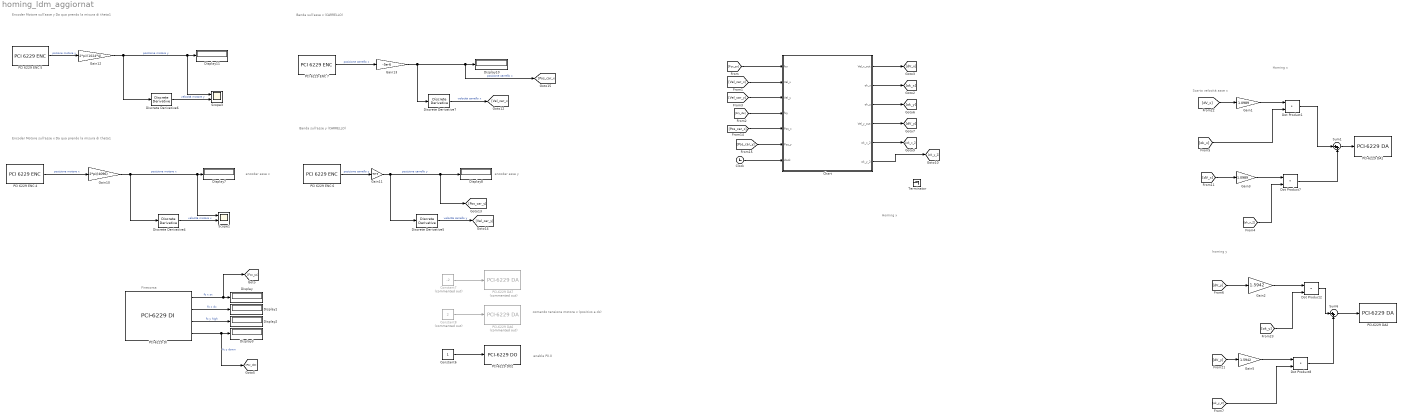
== stateflow chart homing_ldm_aggiornat/Chart ==
  state Homing1
    state Homing_x
      entry:
      v_sp_x=-2.1;
      v_sp_y=1.2;
      ok_x=1;
      ok_y=1;
      ok_x_2=0;
      during:
      Vel_x_out = v_sp_x-Vel_x;
      Vel_y_out=v_sp_y-Vel_y;
    note: Inizializzazione asse x Inizializzazione asse y
    state Fine_homing1
      entry:
      ok_y=0;
      ok_x=0;
      bx=Pos_x;
      by=Pos_y;
      v_sp_x=2.1;
      v_sp_y=-1.2;
      ok_x_2=1;
      ok_y_2=1;
      during:
      Vel_x_out=v_sp_x-Vel_x;
      dx=Pos_x-bx
      if (dx>0.5 )
      Vel_x_out=0;
      end
      Vel_y_out=v_sp_y-Vel_y;
      dy=abs(Pos_y-by);
      if (dy>0.5 )
      Vel_y_out=0;
      end
    note: Fine inizializzazione
    note: Porto al centro asse x Porto al centro asse y
    state Fine
      entry:
      ok_y_2=0;
      ok_x_2=0;
      inizio_traiettoria=0;
      during:
      inizio_traiettoria=1;
    (default) -> Homing_x
    Homing_x -> Homing1.Fine_homing1 : [fcx==0 && fcy==0]
    Homing1.Fine_homing1 -> Homing1.Fine : [dx>0.5 && dy>0.5]
  state Homing
    state Fine_homing1
      entry:
      ok_y=0;
      ok_x=0;
      a=Pos_x;
      ok_x_2=1;
      t1=clock;
      %X=0;
      %G_=0;
      %F_=0;
      %f_=0;
      during:
      t=clock-t1;
      %[G_,F_,f_]=Constant_Acceleration_ADIM_par(t,[1/3,1/3,1/3]);
      X_=Evaluate_Trajectory(t);
      Vel_x_out=X_;
      dx=Pos_x-a
    state Posizionamento_y
      entry:
      ok_x_2=0;
      ay=Pos_y;
      v_sp_y=-1.3;
      ok_y_2=1;
      during:
      Vel_y_out=v_sp_y-Vel_y;
      dy=abs(Pos_y-ay);
    state Fine
      entry:
      ok_y_2=0;
      ok_x_2=0;
    (default) -> Homing.Fine_homing1 : [fcy==0]
    Homing.Fine_homing1 -> Posizionamento_y : [dx>0.5]
    Posizionamento_y -> Homing.Fine : [dy>0.5]
  (default) -> Homing1
  Homing1.Fine -> Homing : [inizio_traiettoria==1]
  data: t1 local double; t local double; t function_input; X function_output; fcx input; Vel_x_out output; Vel_x input; ok_x output; ok_y output; Vel_y input; Vel_y_out output; fcy input; Pos_x input; dx local; ok_x_2 output; v_sp_x local; a local; v_sp_y local; ay local; Pos_y input; ok_y_2 output; dy local; clock input; bx local; by local; inizio_traiettoria local
  function X=Evaluate_Trajectory(t):
    | function X=Evaluate_Trajectory(t)
    | % parametri:
    | % t: tempo assolu
    | % h: spostamento richiesto
    | y=0;
    | yp=0;
    | ypp=0;
    | X=0;
    | 
    | h=0.5;
    | h0=0;
    | DT=[1/5 1/3 1/3 0]; %ta di ogni singolo ramo perche' composta
    | 
    | par = [1/3, 2/3];
    | 
    | 
    | DT1 = DT(1);
    | DT2 = DT(2);
    | DT3 = DT(3);
    | DT4 = DT(4);
    | 
    | T0 = 0;
    | T1 = T0 + DT1;
    | T2 = T1 + DT2;
    | T3 = T2 + DT3;
    | T4  = T3 + DT4;                  % Total time
    | 
    | if t >= T0 && t <= T1            % Interval N°1 
    |    td = DT1; %tempo di azionamento
    |    x = (t - T0)/td; %tempo adimensionale
    |    
    |    [G,F,f] = Constant_Acceleration_ADIM_par(x,par);
    |    y = h0 + G*h;
    |    yp = F * h/td;
    |    ypp = f * h/td^2;
    | end
    | 
    | if t > T1 && t <= T2             % Interval N°2 
    |    y = h0 + h;
    |    yp = 0;
    |    ypp = 0;
    | end
    | 
    | if t > T2 && t <= T3             % Interval N°3
    |    td = DT3;
    |    x = (t - T2)/td;
    |    
    |    [G,F,f] = Constant_Acceleration_ADIM_par(x,par);
    | 
    |    y = (h0 + h) - G*h;
    |    yp =  - (F * h/td);
    |    ypp = - (f * h/td^2);
    | end
    | 
    | if t > T3               % Interval N°4    
    |    y = h0;
    |    yp = 0;
    |    ypp = 0;  
    | end
    | Y = [y,yp,ypp];
    | X=yp;%pos, vel, acc

/*
 * homing_ldm_aggiornat.c
 *
 * Academic License - for use in teaching, academic research, and meeting
 * course requirements at degree granting institutions only.  Not for
 * government, commercial, or other organizational use.
 *
 * Code generation for model "homing_ldm_aggiornat".
 *
 * Model version              : 1.44
 * Simulink Coder version : 8.12 (R2017a) 16-Feb-2017
 * C source code generated on : Wed Nov 24 17:41:39 2021
 *
 * Target selection: slrt.tlc
 * Note: GRT includes extra infrastructure and instrumentation for prototyping
 * Embedded hardware selection: Generic->32-bit x86 compatible
 * Code generation objectives: Unspecified
 * Validation result: Not run
 */

#include "rt_logging_mmi.h"
#include "homing_ldm_aggiornat_capi.h"
#include "homing_ldm_aggiornat.h"
#include "homing_ldm_aggiornat_private.h"

/* Named constants for Chart: '<Root>/Chart' */
#define homing_ldm_a_IN_NO_ACTIVE_CHILD ((uint8_T)0U)
#define homing_ldm_aggi_IN_Fine_homing1 ((uint8_T)2U)
#define homing_ldm_aggiorna_IN_Homing_x ((uint8_T)3U)
#define homing_ldm_aggiornat_CALL_EVENT (-1)
#define homing_ldm_aggiornat_IN_Fine   ((uint8_T)1U)
#define homing_ldm_aggiornat_IN_Homing1 ((uint8_T)1U)
#define homing_ldm_aggiornat_IN_Homing2 ((uint8_T)2U)

/* Block signals (auto storage) */
B_homing_ldm_aggiornat_T homing_ldm_aggiornat_B;

/* Block states (auto storage) */
DW_homing_ldm_aggiornat_T homing_ldm_aggiornat_DW;

/* Real-time model */
RT_MODEL_homing_ldm_aggiornat_T homing_ldm_aggiornat_M_;
RT_MODEL_homing_ldm_aggiornat_T *const homing_ldm_aggiornat_M =
  &homing_ldm_aggiornat_M_;

/* Model output function */
static void homing_ldm_aggiornat_output(void)
{
  boolean_T sf_internal_predicateOutput;
  real_T tmp;
  real_T tmp_0;

  /* S-Function (dinipcim): '<Root>/PCI-6229 DI' */

  /* Level2 S-Function Block: '<Root>/PCI-6229 DI' (dinipcim) */
  {
    SimStruct *rts = homing_ldm_aggiornat_M->childSfunctions[0];
    sfcnOutputs(rts,1);
  }

  /* S-Function (encnipcim): '<Root>/PCI 6229 ENC 7' */

  /* Level2 S-Function Block: '<Root>/PCI 6229 ENC 7' (encnipcim) */
  {
    SimStruct *rts = homing_ldm_aggiornat_M->childSfunctions[1];
    sfcnOutputs(rts,1);
  }

  /* Gain: '<Root>/Gain13' */
  homing_ldm_aggiornat_B.posizionecarrellox_n =
    homing_ldm_aggiornat_P.Gain13_Gain *
    homing_ldm_aggiornat_B.posizionecarrellox;

  /* S-Function (encnipcim): '<Root>/PCI 6229 ENC 6' */

  /* Level2 S-Function Block: '<Root>/PCI 6229 ENC 6' (encnipcim) */
  {
    SimStruct *rts = homing_ldm_aggiornat_M->childSfunctions[2];
    sfcnOutputs(rts,1);
  }

  /* Gain: '<Root>/Gain11' */
  homing_ldm_aggiornat_B.posizionecarrelloy_e =
    homing_ldm_aggiornat_P.Gain11_Gain *
    homing_ldm_aggiornat_B.posizionecarrelloy;

  /* SampleTimeMath: '<S3>/TSamp'
   *
   * About '<S3>/TSamp':
   *  y = u * K where K = 1 / ( w * Ts )
   */
  homing_ldm_aggiornat_B.TSamp = homing_ldm_aggiornat_B.posizionecarrelloy_e *
    homing_ldm_aggiornat_P.TSamp_WtEt;

  /* UnitDelay: '<S3>/UD' */
  homing_ldm_aggiornat_B.Uk1 = homing_ldm_aggiornat_DW.UD_DSTATE;

  /* Sum: '<S3>/Diff' */
  homing_ldm_aggiornat_B.Diff = homing_ldm_aggiornat_B.TSamp -
    homing_ldm_aggiornat_B.Uk1;

  /* SampleTimeMath: '<S5>/TSamp'
   *
   * About '<S5>/TSamp':
   *  y = u * K where K = 1 / ( w * Ts )
   */
  homing_ldm_aggiornat_B.TSamp_b = homing_ldm_aggiornat_B.posizionecarrellox_n *
    homing_ldm_aggiornat_P.TSamp_WtEt_h;

  /* UnitDelay: '<S5>/UD' */
  homing_ldm_aggiornat_B.Uk1_a = homing_ldm_aggiornat_DW.UD_DSTATE_p;

  /* Sum: '<S5>/Diff' */
  homing_ldm_aggiornat_B.Diff_k = homing_ldm_aggiornat_B.TSamp_b -
    homing_ldm_aggiornat_B.Uk1_a;

  /* Clock: '<Root>/Clock' */
  homing_ldm_aggiornat_B.Clock = homing_ldm_aggiornat_M->Timing.t[0];

  /* Chart: '<Root>/Chart' */
  /* Gateway: Chart */
  homing_ldm_aggiornat_DW.sfEvent = homing_ldm_aggiornat_CALL_EVENT;

  /* During: Chart */
  if (homing_ldm_aggiornat_DW.is_active_c3_homing_ldm_aggiorn == 0U) {
    /* Entry: Chart */
    homing_ldm_aggiornat_DW.is_active_c3_homing_ldm_aggiorn = 1U;

    /* Entry Internal: Chart */
    /* Transition: '<S1>:148' */
    homing_ldm_aggiornat_DW.is_c3_homing_ldm_aggiornat =
      homing_ldm_aggiornat_IN_Homing1;

    /* Entry Internal 'Homing1': '<S1>:144' */
    /* Transition: '<S1>:146' */
    homing_ldm_aggiornat_DW.is_Homing1 = homing_ldm_aggiorna_IN_Homing_x;

    /* Entry 'Homing_x': '<S1>:150' */
    homing_ldm_aggiornat_DW.v_sp_x = -2.1;
    homing_ldm_aggiornat_DW.v_sp_y = 1.2;
    homing_ldm_aggiornat_B.ok_x = 1.0;
    homing_ldm_aggiornat_B.ok_y = 1.0;
    homing_ldm_aggiornat_B.ok_x_2 = 0.0;
  } else if (homing_ldm_aggiornat_DW.is_c3_homing_ldm_aggiornat ==
             homing_ldm_aggiornat_IN_Homing1) {
    /* During 'Homing1': '<S1>:144' */
    if (homing_ldm_aggiornat_DW.inizio_traiettoria == 1.0) {
      /* Transition: '<S1>:166' */
      /* Exit Internal 'Homing1': '<S1>:144' */
      homing_ldm_aggiornat_DW.is_Homing1 = homing_ldm_a_IN_NO_ACTIVE_CHILD;
      homing_ldm_aggiornat_DW.is_c3_homing_ldm_aggiornat =
        homing_ldm_aggiornat_IN_Homing2;

      /* Entry Internal 'Homing2': '<S1>:165' */
      /* Transition: '<S1>:167' */
      homing_ldm_aggiornat_DW.is_Homing2 = homing_ldm_aggiorna_IN_Homing_x;

      /* Entry 'Homing_x': '<S1>:170' */
      homing_ldm_aggiornat_DW.v_sp_x = -2.1;
      homing_ldm_aggiornat_DW.v_sp_y = 1.2;
      homing_ldm_aggiornat_B.ok_x = 1.0;
      homing_ldm_aggiornat_B.ok_y = 1.0;
      homing_ldm_aggiornat_B.ok_x_2 = 0.0;
    } else {
      switch (homing_ldm_aggiornat_DW.is_Homing1) {
       case homing_ldm_aggiornat_IN_Fine:
        homing_ldm_aggiornat_B.ok_y_2 = 0.0;
        homing_ldm_aggiornat_B.ok_x_2 = 0.0;

        /* During 'Fine': '<S1>:149' */
        homing_ldm_aggiornat_DW.inizio_traiettoria = 1.0;
        break;

       case homing_ldm_aggi_IN_Fine_homing1:
        homing_ldm_aggiornat_B.ok_y_2 = 1.0;
        homing_ldm_aggiornat_B.ok_x_2 = 1.0;
        homing_ldm_aggiornat_B.ok_x = 0.0;
        homing_ldm_aggiornat_B.ok_y = 0.0;

        /* During 'Fine_homing1': '<S1>:145' */
        sf_internal_predicateOutput = ((homing_ldm_aggiornat_DW.dx > 0.5) &&
          (homing_ldm_aggiornat_DW.dy > 0.5));
        if (sf_internal_predicateOutput) {
          /* Transition: '<S1>:147' */
          homing_ldm_aggiornat_DW.is_Homing1 = homing_ldm_aggiornat_IN_Fine;

          /* Entry 'Fine': '<S1>:149' */
          homing_ldm_aggiornat_B.ok_y_2 = 0.0;
          homing_ldm_aggiornat_B.ok_x_2 = 0.0;
          homing_ldm_aggiornat_DW.inizio_traiettoria = 0.0;
        } else {
          homing_ldm_aggiornat_B.Vel_x_out = homing_ldm_aggiornat_DW.v_sp_x -
            homing_ldm_aggiornat_B.Diff_k;
          homing_ldm_aggiornat_DW.dx =
            homing_ldm_aggiornat_B.posizionecarrellox_n -
            homing_ldm_aggiornat_DW.bx;
          if (homing_ldm_aggiornat_DW.dx > 0.5) {
            homing_ldm_aggiornat_B.Vel_x_out = 0.0;
          }

          homing_ldm_aggiornat_B.Vel_y_out = homing_ldm_aggiornat_DW.v_sp_y -
            homing_ldm_aggiornat_B.Diff;
          homing_ldm_aggiornat_DW.dy = fabs
            (homing_ldm_aggiornat_B.posizionecarrelloy_e -
             homing_ldm_aggiornat_DW.by);
          if (homing_ldm_aggiornat_DW.dy > 0.5) {
            homing_ldm_aggiornat_B.Vel_y_out = 0.0;
          }
        }
        break;

       default:
        homing_ldm_aggiornat_B.ok_x_2 = 0.0;
        homing_ldm_aggiornat_B.ok_x = 1.0;
        homing_ldm_aggiornat_B.ok_y = 1.0;

        /* During 'Homing_x': '<S1>:150' */
        sf_internal_predicateOutput = ((homing_ldm_aggiornat_B.fcxsx == 0.0) &&
          (homing_ldm_aggiornat_B.fcydown == 0.0));
        if (sf_internal_predicateOutput) {
          /* Transition: '<S1>:155' */
          homing_ldm_aggiornat_DW.is_Homing1 = homing_ldm_aggi_IN_Fine_homing1;

          /* Entry 'Fine_homing1': '<S1>:145' */
          homing_ldm_aggiornat_B.ok_y = 0.0;
          homing_ldm_aggiornat_B.ok_x = 0.0;
          homing_ldm_aggiornat_DW.bx =
            homing_ldm_aggiornat_B.posizionecarrellox_n;
          homing_ldm_aggiornat_DW.by =
            homing_ldm_aggiornat_B.posizionecarrelloy_e;
          homing_ldm_aggiornat_DW.v_sp_x = 2.1;
          homing_ldm_aggiornat_DW.v_sp_y = -1.2;
          homing_ldm_aggiornat_B.ok_x_2 = 1.0;
          homing_ldm_aggiornat_B.ok_y_2 = 1.0;
        } else {
          homing_ldm_aggiornat_B.Vel_x_out = homing_ldm_aggiornat_DW.v_sp_x -
            homing_ldm_aggiornat_B.Diff_k;
          homing_ldm_aggiornat_B.Vel_y_out = homing_ldm_aggiornat_DW.v_sp_y -
            homing_ldm_aggiornat_B.Diff;
        }
        break;
      }
    }
  } else {
    /* During 'Homing2': '<S1>:165' */
    switch (homing_ldm_aggiornat_DW.is_Homing2) {
     case homing_ldm_aggiornat_IN_Fine:
      homing_ldm_aggiornat_B.ok_y_2 = 0.0;
      homing_ldm_aggiornat_B.ok_x_2 = 0.0;

      /* During 'Fine': '<S1>:168' */
      break;

     case homing_ldm_aggi_IN_Fine_homing1:
      homing_ldm_aggiornat_B.ok_y_2 = 1.0;
      homing_ldm_aggiornat_B.ok_x_2 = 1.0;
      homing_ldm_aggiornat_B.ok_x = 0.0;
      homing_ldm_aggiornat_B.ok_y = 0.0;

      /* During 'Fine_homing1': '<S1>:172' */
      sf_internal_predicateOutput = ((homing_ldm_aggiornat_DW.dx > 0.5) &&
        (homing_ldm_aggiornat_DW.dy > 0.5));
      if (sf_internal_predicateOutput) {
        /* Transition: '<S1>:173' */
        homing_ldm_aggiornat_DW.is_Homing2 = homing_ldm_aggiornat_IN_Fine;

        /* Entry 'Fine': '<S1>:168' */
        homing_ldm_aggiornat_B.ok_y_2 = 0.0;
        homing_ldm_aggiornat_B.ok_x_2 = 0.0;
      } else {
        homing_ldm_aggiornat_B.Vel_x_out = homing_ldm_aggiornat_DW.v_sp_x -
          homing_ldm_aggiornat_B.Diff_k;
        homing_ldm_aggiornat_DW.dx = homing_ldm_aggiornat_B.posizionecarrellox_n
          - homing_ldm_aggiornat_DW.bx;
        if (homing_ldm_aggiornat_DW.dx > 0.5) {
          homing_ldm_aggiornat_B.Vel_x_out = 0.0;
        }

        homing_ldm_aggiornat_B.Vel_y_out = homing_ldm_aggiornat_DW.v_sp_y -
          homing_ldm_aggiornat_B.Diff;
        homing_ldm_aggiornat_DW.dy = fabs
          (homing_ldm_aggiornat_B.posizionecarrelloy_e -
           homing_ldm_aggiornat_DW.by);
        if (homing_ldm_aggiornat_DW.dy > 0.5) {
          homing_ldm_aggiornat_B.Vel_y_out = 0.0;
        }
      }
      break;

     default:
      homing_ldm_aggiornat_B.ok_x_2 = 0.0;
      homing_ldm_aggiornat_B.ok_x = 1.0;
      homing_ldm_aggiornat_B.ok_y = 1.0;

      /* During 'Homing_x': '<S1>:170' */
      sf_internal_predicateOutput = ((homing_ldm_aggiornat_B.fcxsx == 0.0) &&
        (homing_ldm_aggiornat_B.fcydown == 0.0));
      if (sf_internal_predicateOutput) {
        /* Transition: '<S1>:175' */
        homing_ldm_aggiornat_DW.is_Homing2 = homing_ldm_aggi_IN_Fine_homing1;

        /* Entry 'Fine_homing1': '<S1>:172' */
        homing_ldm_aggiornat_B.ok_y = 0.0;
        homing_ldm_aggiornat_B.ok_x = 0.0;
        homing_ldm_aggiornat_DW.bx = homing_ldm_aggiornat_B.posizionecarrellox_n;
        homing_ldm_aggiornat_DW.by = homing_ldm_aggiornat_B.posizionecarrelloy_e;
        homing_ldm_aggiornat_DW.v_sp_x = 2.1;
        homing_ldm_aggiornat_DW.v_sp_y = -1.2;
        homing_ldm_aggiornat_B.ok_x_2 = 1.0;
        homing_ldm_aggiornat_B.ok_y_2 = 1.0;
      } else {
        homing_ldm_aggiornat_B.Vel_x_out = homing_ldm_aggiornat_DW.v_sp_x -
          homing_ldm_aggiornat_B.Diff_k;
        homing_ldm_aggiornat_B.Vel_y_out = homing_ldm_aggiornat_DW.v_sp_y -
          homing_ldm_aggiornat_B.Diff;
      }
      break;
    }
  }

  /* End of Chart: '<Root>/Chart' */

  /* Gain: '<Root>/Gain1' */
  homing_ldm_aggiornat_B.Gain1 = homing_ldm_aggiornat_P.Gain1_Gain *
    homing_ldm_aggiornat_B.Vel_x_out;

  /* Gain: '<Root>/Gain2' */
  homing_ldm_aggiornat_B.Gain2 = homing_ldm_aggiornat_P.Gain2_Gain *
    homing_ldm_aggiornat_B.Vel_y_out;

  /* Gain: '<Root>/Gain3' */
  homing_ldm_aggiornat_B.Gain3 = homing_ldm_aggiornat_P.Gain3_Gain *
    homing_ldm_aggiornat_B.Vel_x_out;

  /* DotProduct: '<Root>/Dot Product1' */
  tmp = homing_ldm_aggiornat_B.Gain1;
  tmp_0 = homing_ldm_aggiornat_B.ok_x;
  homing_ldm_aggiornat_B.DotProduct1 = tmp * tmp_0;

  /* DotProduct: '<Root>/Dot Product7' */
  tmp = homing_ldm_aggiornat_B.Gain3;
  tmp_0 = homing_ldm_aggiornat_B.ok_x_2;
  homing_ldm_aggiornat_B.DotProduct7 = tmp * tmp_0;

  /* Sum: '<Root>/Sum1' */
  homing_ldm_aggiornat_B.Sum1 = homing_ldm_aggiornat_B.DotProduct1 +
    homing_ldm_aggiornat_B.DotProduct7;

  /* S-Function (danipcim): '<Root>/PCI-6229 DA1' */

  /* Level2 S-Function Block: '<Root>/PCI-6229 DA1' (danipcim) */
  {
    SimStruct *rts = homing_ldm_aggiornat_M->childSfunctions[3];
    sfcnOutputs(rts,1);
  }

  /* DotProduct: '<Root>/Dot Product2' */
  tmp = homing_ldm_aggiornat_B.Gain2;
  tmp_0 = homing_ldm_aggiornat_B.ok_y;
  homing_ldm_aggiornat_B.DotProduct2 = tmp * tmp_0;

  /* Gain: '<Root>/Gain5' */
  homing_ldm_aggiornat_B.Gain5 = homing_ldm_aggiornat_P.Gain5_Gain *
    homing_ldm_aggiornat_B.Vel_y_out;

  /* DotProduct: '<Root>/Dot Product8' */
  tmp = homing_ldm_aggiornat_B.Gain5;
  tmp_0 = homing_ldm_aggiornat_B.ok_y_2;
  homing_ldm_aggiornat_B.DotProduct8 = tmp * tmp_0;

  /* Sum: '<Root>/Sum6' */
  homing_ldm_aggiornat_B.Sum6 = homing_ldm_aggiornat_B.DotProduct2 +
    homing_ldm_aggiornat_B.DotProduct8;

  /* S-Function (danipcim): '<Root>/PCI-6229 DA2' */

  /* Level2 S-Function Block: '<Root>/PCI-6229 DA2' (danipcim) */
  {
    SimStruct *rts = homing_ldm_aggiornat_M->childSfunctions[4];
    sfcnOutputs(rts,1);
  }

  /* Constant: '<Root>/Constant6' */
  homing_ldm_aggiornat_B.Constant6 = homing_ldm_aggiornat_P.Constant6_Value;

  /* S-Function (donipcim): '<Root>/PCI-6229 DO2' */

  /* Level2 S-Function Block: '<Root>/PCI-6229 DO2' (donipcim) */
  {
    SimStruct *rts = homing_ldm_aggiornat_M->childSfunctions[5];
    sfcnOutputs(rts,1);
  }

  /* S-Function (encnipcim): '<Root>/PCI 6229 ENC 4' */

  /* Level2 S-Function Block: '<Root>/PCI 6229 ENC 4' (encnipcim) */
  {
    SimStruct *rts = homing_ldm_aggiornat_M->childSfunctions[6];
    sfcnOutputs(rts,1);
  }

  /* Gain: '<Root>/Gain10' */
  homing_ldm_aggiornat_B.posizionemotorex_i = homing_ldm_aggiornat_P.Gain10_Gain
    * homing_ldm_aggiornat_B.posizionemotorex;

  /* SampleTimeMath: '<S2>/TSamp'
   *
   * About '<S2>/TSamp':
   *  y = u * K where K = 1 / ( w * Ts )
   */
  homing_ldm_aggiornat_B.TSamp_c = homing_ldm_aggiornat_B.posizionemotorex_i *
    homing_ldm_aggiornat_P.TSamp_WtEt_j;

  /* UnitDelay: '<S2>/UD' */
  homing_ldm_aggiornat_B.Uk1_l = homing_ldm_aggiornat_DW.UD_DSTATE_d;

  /* Sum: '<S2>/Diff' */
  homing_ldm_aggiornat_B.Diff_e = homing_ldm_aggiornat_B.TSamp_c -
    homing_ldm_aggiornat_B.Uk1_l;

  /* S-Function (encnipcim): '<Root>/PCI 6229 ENC 5' */

  /* Level2 S-Function Block: '<Root>/PCI 6229 ENC 5' (encnipcim) */
  {
    SimStruct *rts = homing_ldm_aggiornat_M->childSfunctions[7];
    sfcnOutputs(rts,1);
  }

  /* Gain: '<Root>/Gain12' */
  homing_ldm_aggiornat_B.posizionemotorey = homing_ldm_aggiornat_P.Gain12_Gain *
    homing_ldm_aggiornat_B.pozionemotorey;

  /* SampleTimeMath: '<S4>/TSamp'
   *
   * About '<S4>/TSamp':
   *  y = u * K where K = 1 / ( w * Ts )
   */
  homing_ldm_aggiornat_B.TSamp_l = homing_ldm_aggiornat_B.posizionemotorey *
    homing_ldm_aggiornat_P.TSamp_WtEt_b;

  /* UnitDelay: '<S4>/UD' */
  homing_ldm_aggiornat_B.Uk1_b = homing_ldm_aggiornat_DW.UD_DSTATE_b;

  /* Sum: '<S4>/Diff' */
  homing_ldm_aggiornat_B.Diff_d = homing_ldm_aggiornat_B.TSamp_l -
    homing_ldm_aggiornat_B.Uk1_b;
}

/* Model update function */
static void homing_ldm_aggiornat_update(void)
{
  /* Update for UnitDelay: '<S3>/UD' */
  homing_ldm_aggiornat_DW.UD_DSTATE = homing_ldm_aggiornat_B.TSamp;

  /* Update for UnitDelay: '<S5>/UD' */
  homing_ldm_aggiornat_DW.UD_DSTATE_p = homing_ldm_aggiornat_B.TSamp_b;

  /* Update for UnitDelay: '<S2>/UD' */
  homing_ldm_aggiornat_DW.UD_DSTATE_d = homing_ldm_aggiornat_B.TSamp_c;

  /* Update for UnitDelay: '<S4>/UD' */
  homing_ldm_aggiornat_DW.UD_DSTATE_b = homing_ldm_aggiornat_B.TSamp_l;

  /* Update absolute time for base rate */
  /* The "clockTick0" counts the number of times the code of this task has
   * been executed. The absolute time is the multiplication of "clockTick0"
   * and "Timing.stepSize0". Size of "clockTick0" ensures timer will not
   * overflow during the application lifespan selected.
   * Timer of this task consists of two 32 bit unsigned integers.
   * The two integers represent the low bits Timing.clockTick0 and the high bits
   * Timing.clockTickH0. When the low bit overflows to 0, the high bits increment.
   */
  if (!(++homing_ldm_aggiornat_M->Timing.clockTick0)) {
    ++homing_ldm_aggiornat_M->Timing.clockTickH0;
  }

  homing_ldm_aggiornat_M->Timing.t[0] =
    homing_ldm_aggiornat_M->Timing.clockTick0 *
    homing_ldm_aggiornat_M->Timing.stepSize0 +
    homing_ldm_aggiornat_M->Timing.clockTickH0 *
    homing_ldm_aggiornat_M->Timing.stepSize0 * 4294967296.0;

  {
    /* Update absolute timer for sample time: [0.001s, 0.0s] */
    /* The "clockTick1" counts the number of times the code of this task has
     * been executed. The absolute time is the multiplication of "clockTick1"
     * and "Timing.stepSize1". Size of "clockTick1" ensures timer will not
     * overflow during the application lifespan selected.
     * Timer of this task consists of two 32 bit unsigned integers.
     * The two integers represent the low bits Timing.clockTick1 and the high bits
     * Timing.clockTickH1. When the low bit overflows to 0, the high bits increment.
     */
    if (!(++homing_ldm_aggiornat_M->Timing.clockTick1)) {
      ++homing_ldm_aggiornat_M->Timing.clockTickH1;
    }

    homing_ldm_aggiornat_M->Timing.t[1] =
      homing_ldm_aggiornat_M->Timing.clockTick1 *
      homing_ldm_aggiornat_M->Timing.stepSize1 +
      homing_ldm_aggiornat_M->Timing.clockTickH1 *
      homing_ldm_aggiornat_M->Timing.stepSize1 * 4294967296.0;
  }
}
